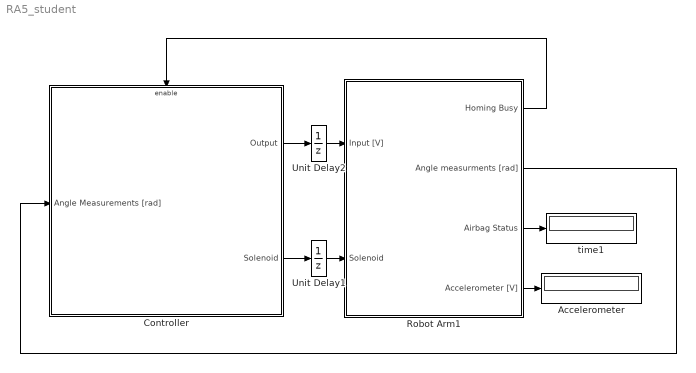
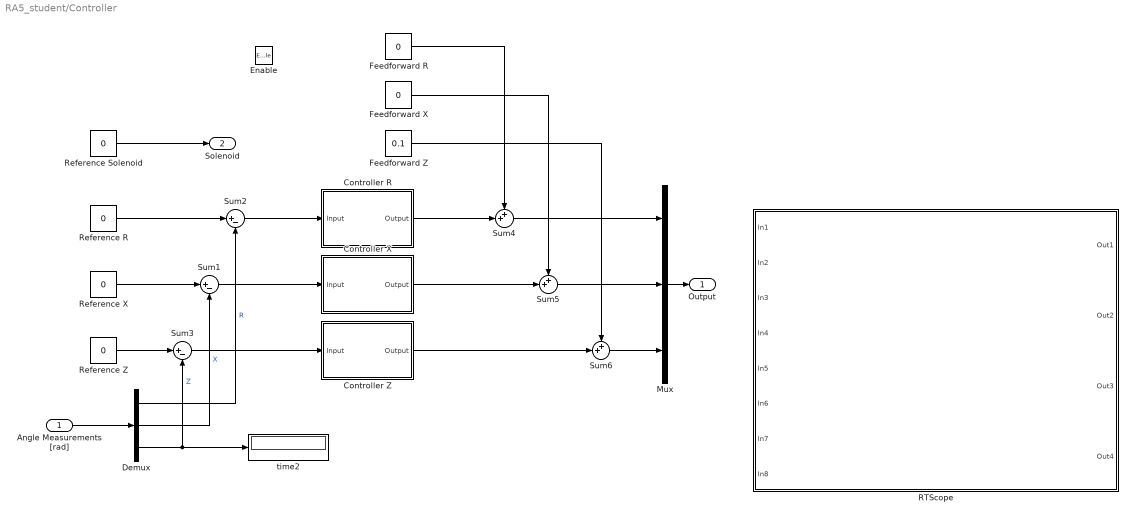
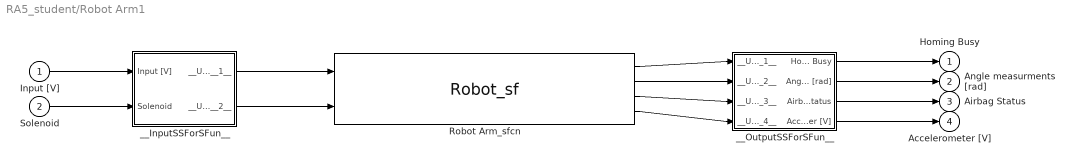
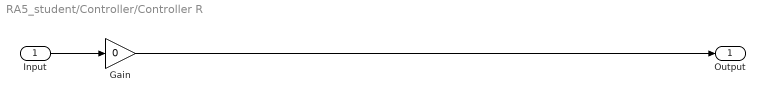
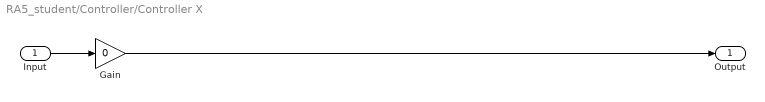
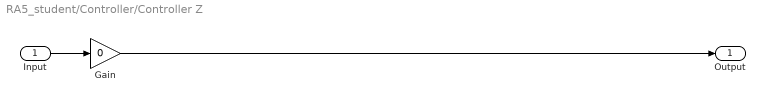
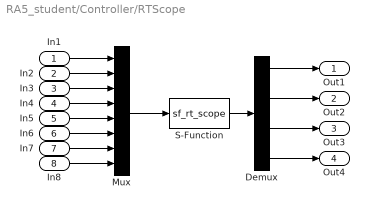
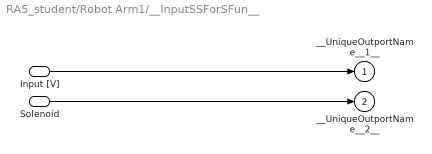
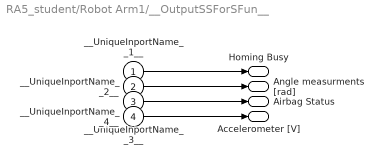
/*
 * RA5_student.c
 *
 * Academic License - for use in teaching, academic research, and meeting
 * course requirements at degree granting institutions only.  Not for
 * government, commercial, or other organizational use.
 *
 * Code generation for model "RA5_student".
 *
 * Model version              : 1.905
 * Simulink Coder version : 8.9 (R2015b) 13-Aug-2015
 * C source code generated on : Thu Apr 21 19:00:29 2016
 *
 * Target selection: ectarget.tlc
 * Note: GRT includes extra infrastructure and instrumentation for prototyping
 * Embedded hardware selection: 32-bit Generic
 * Code generation objectives: Unspecified
 * Validation result: Not run
 */

#include "RA5_student.h"
#include "RA5_student_private.h"
#include "RA5_student_dt.h"
#undef S_FUNCTION_NAME
#if !defined(RTW_GENERATED_SFCN_TUNABLE_PRMS_Robot_sf)
#define RTW_GENERATED_SFCN_TUNABLE_PRMS_Robot_sf
#endif

#include "Robot_sf.h"

const real_T RA5_student_RGND = 0.0;   /* real_T ground */

/* Block signals (auto storage) */
B_RA5_student_T RA5_student_B;

/* Block states (auto storage) */
DW_RA5_student_T RA5_student_DW;

/* Real-time model */
RT_MODEL_RA5_student_T RA5_student_M_;
RT_MODEL_RA5_student_T *const RA5_student_M = &RA5_student_M_;

/* Model output function */
void RA5_student_output(void)
{
  /* Reset subsysRan breadcrumbs */
  srClearBC(RA5_student_DW.Controller_SubsysRanBC);

  /* UnitDelay: '<Root>/Unit Delay2' */
  RA5_student_B.UnitDelay2[0] = RA5_student_DW.UnitDelay2_DSTATE[0];
  RA5_student_B.UnitDelay2[1] = RA5_student_DW.UnitDelay2_DSTATE[1];
  RA5_student_B.UnitDelay2[2] = RA5_student_DW.UnitDelay2_DSTATE[2];

  /* UnitDelay: '<Root>/Unit Delay1' */
  RA5_student_B.UnitDelay1 = RA5_student_DW.UnitDelay1_DSTATE;

  /* RTW Generated Level2 S-Function Block: '<S2>/Robot Arm_sfcn' (Robot_sf) */
  {
    SimStruct *rts = RA5_student_M->childSfunctions[1];
    sfcnOutputs(rts, 0);
  }

  /* Outputs for Enabled SubSystem: '<Root>/Controller' incorporates:
   *  EnablePort: '<S1>/Enable'
   */
  if (RA5_student_B.RobotArm_sfcn_o1 > 0.0) {
    if (!RA5_student_DW.Controller_MODE) {
      RA5_student_DW.Controller_MODE = true;
    }
  } else {
    if (RA5_student_DW.Controller_MODE) {
      RA5_student_DW.Controller_MODE = false;
    }
  }

  if (RA5_student_DW.Controller_MODE) {
    /* Sum: '<S1>/Sum4' incorporates:
     *  Constant: '<S1>/Feedforward R'
     *  Constant: '<S1>/Reference R'
     *  Gain: '<S3>/Gain'
     *  Sum: '<S1>/Sum2'
     */
    RA5_student_B.Sum4 = (RA5_student_P.ReferenceR_Value -
                          RA5_student_B.RobotArm_sfcn_o2[0]) *
      RA5_student_P.Gain_Gain + RA5_student_P.FeedforwardR_Value;

    /* Sum: '<S1>/Sum5' incorporates:
     *  Constant: '<S1>/Feedforward X'
     *  Constant: '<S1>/Reference X'
     *  Gain: '<S4>/Gain'
     *  Sum: '<S1>/Sum1'
     */
    RA5_student_B.Sum5 = (RA5_student_P.ReferenceX_Value -
                          RA5_student_B.RobotArm_sfcn_o2[1]) *
      RA5_student_P.Gain_Gain_e + RA5_student_P.FeedforwardX_Value;

    /* Sum: '<S1>/Sum6' incorporates:
     *  Constant: '<S1>/Feedforward Z'
     *  Constant: '<S1>/Reference Z'
     *  Gain: '<S5>/Gain'
     *  Sum: '<S1>/Sum3'
     */
    RA5_student_B.Sum6 = (RA5_student_P.ReferenceZ_Value -
                          RA5_student_B.RobotArm_sfcn_o2[2]) *
      RA5_student_P.Gain_Gain_l + RA5_student_P.FeedforwardZ_Value;

    /* Constant: '<S1>/Reference Solenoid' */
    RA5_student_B.ReferenceSolenoid = RA5_student_P.ReferenceSolenoid_Value;

    /* Level2 S-Function Block: '<S6>/S-Function' (sf_rt_scope) */
    {
      SimStruct *rts = RA5_student_M->childSfunctions[0];
      sfcnOutputs(rts, 0);
    }

    srUpdateBC(RA5_student_DW.Controller_SubsysRanBC);
  }

  /* End of Outputs for SubSystem: '<Root>/Controller' */
}

/* Model update function */
void RA5_student_update(void)
{
  /* Update for UnitDelay: '<Root>/Unit Delay2' */
  RA5_student_DW.UnitDelay2_DSTATE[0] = RA5_student_B.Sum4;
  RA5_student_DW.UnitDelay2_DSTATE[1] = RA5_student_B.Sum5;
  RA5_student_DW.UnitDelay2_DSTATE[2] = RA5_student_B.Sum6;

  /* Update for UnitDelay: '<Root>/Unit Delay1' */
  RA5_student_DW.UnitDelay1_DSTATE = RA5_student_B.ReferenceSolenoid;

  /* RTW Generated Level2 S-Function Block: '<S2>/Robot Arm_sfcn' (Robot_sf) */
  {
    SimStruct *rts = RA5_student_M->childSfunctions[1];
    sfcnUpdate(rts, 0);
    if (ssGetErrorStatus(rts) != (NULL))
      return;
  }

  /* Update absolute time for base rate */
  /* The "clockTick0" counts the number of times the code of this task has
   * been executed. The absolute time is the multiplication of "clockTick0"
   * and "Timing.stepSize0". Size of "clockTick0" ensures timer will not
   * overflow during the application lifespan selected.
   * Timer of this task consists of two 32 bit unsigned integers.
   * The two integers represent the low bits Timing.clockTick0 and the high bits
   * Timing.clockTickH0. When the low bit overflows to 0, the high bits increment.
   */
  if (!(++RA5_student_M->Timing.clockTick0)) {
    ++RA5_student_M->Timing.clockTickH0;
  }

  RA5_student_M->Timing.t[0] = RA5_student_M->Timing.clockTick0 *
    RA5_student_M->Timing.stepSize0 + RA5_student_M->Timing.clockTickH0 *
    RA5_student_M->Timing.stepSize0 * 4294967296.0;

  {
    /* Update absolute timer for sample time: [0.000244140625s, 0.0s] */
    /* The "clockTick1" counts the number of times the code of this task has
     * been executed. The absolute time is the multiplication of "clockTick1"
     * and "Timing.stepSize1". Size of "clockTick1" ensures timer will not
     * overflow during the application lifespan selected.
     * Timer of this task consists of two 32 bit unsigned integers.
     * The two integers represent the low bits Timing.clockTick1 and the high bits
     * Timing.clockTickH1. When the low bit overflows to 0, the high bits increment.
     */
    if (!(++RA5_student_M->Timing.clockTick1)) {
      ++RA5_student_M->Timing.clockTickH1;
    }

    RA5_student_M->Timing.t[1] = RA5_student_M->Timing.clockTick1 *
      RA5_student_M->Timing.stepSize1 + RA5_student_M->Timing.clockTickH1 *
      RA5_student_M->Timing.stepSize1 * 4294967296.0;
  }
}
